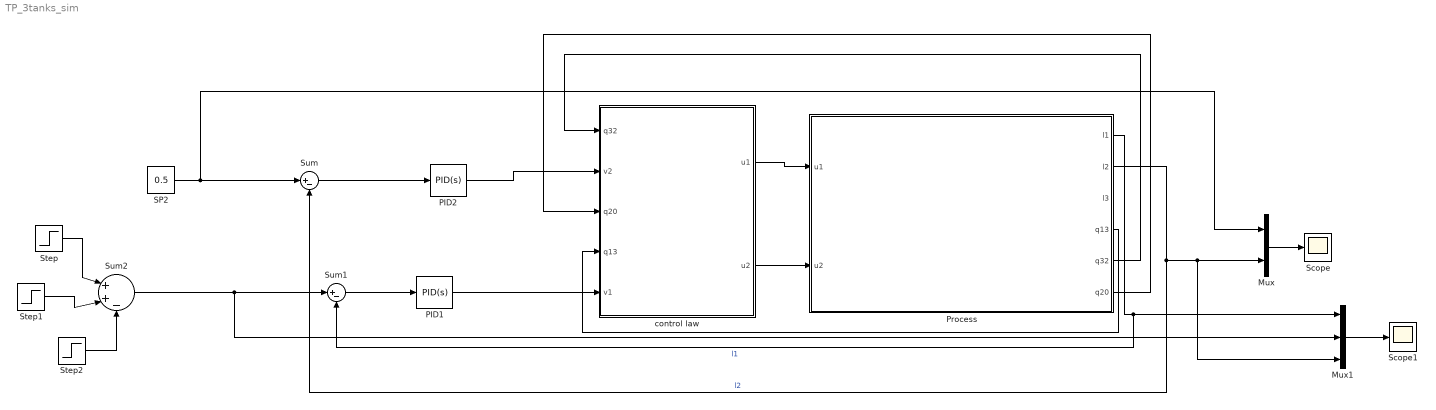
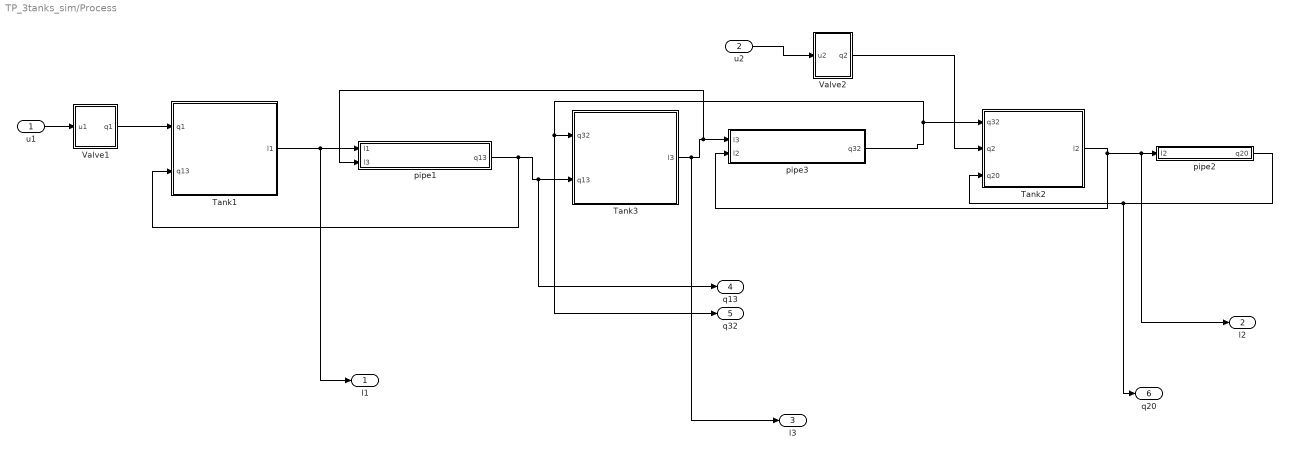
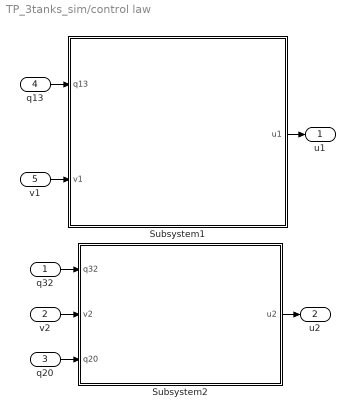
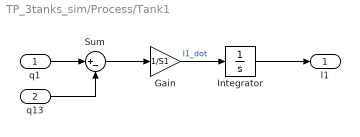
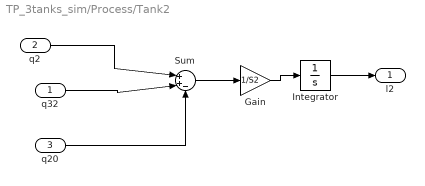
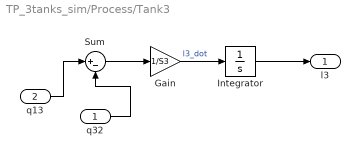
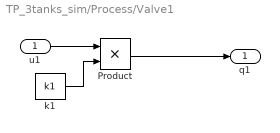
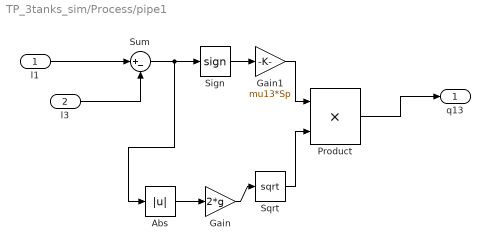
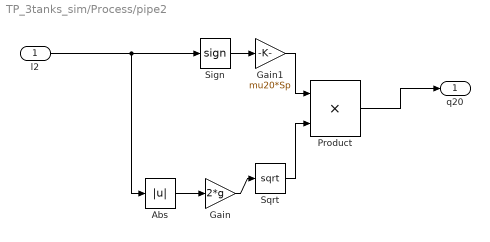
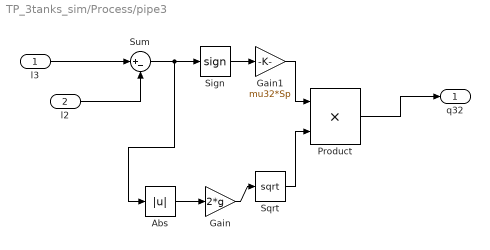
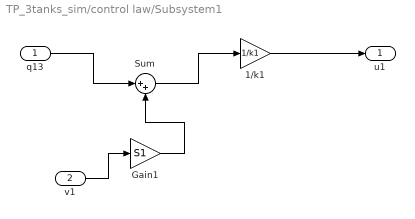
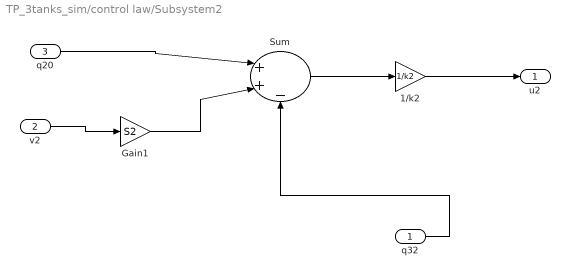
== system TP_3tanks_sim/Process/Valve2 ==
  u2 : Inport
  Product : Product
  k2 : Constant  Value=k2
  q2 : Outport
  wires:
  k2/1 -> Product/2
  u2/1 -> Product/1
  Product/1 -> q2/1

/*
 * TP_3tanks_sim.cpp
 *
 * Trial License - for use to evaluate programs for possible purchase as
 * an end-user only.
 *
 * Code generation for model "TP_3tanks_sim".
 *
 * Model version              : 1.19
 * Simulink Coder version : 24.2 (R2024b) 21-Jun-2024
 * C++ source code generated on : Fri Mar 29 11:18:57 2024
 *
 * Target selection: ert.tlc
 * Note: GRT includes extra infrastructure and instrumentation for prototyping
 * Embedded hardware selection: Intel->x86-64 (Linux 64)
 * Code generation objectives: Unspecified
 * Validation result: Not run
 */

#include "TP_3tanks_sim.h"
#include "rtwtypes.h"

extern "C"
{

#include "rt_nonfinite.h"

}

#include <math.h>
#include "TP_3tanks_sim_private.h"

/*
 * This function updates continuous states using the ODE3 fixed-step
 * solver algorithm
 */
void TP_3tanks_sim::rt_ertODEUpdateContinuousStates(RTWSolverInfo *si )
{
  /* Solver Matrices */
  static const real_T rt_ODE3_A[3] = {
    1.0/2.0, 3.0/4.0, 1.0
  };

  static const real_T rt_ODE3_B[3][3] = {
    { 1.0/2.0, 0.0, 0.0 },

    { 0.0, 3.0/4.0, 0.0 },

    { 2.0/9.0, 1.0/3.0, 4.0/9.0 }
  };

  time_T t = rtsiGetT(si);
  time_T tnew = rtsiGetSolverStopTime(si);
  time_T h = rtsiGetStepSize(si);
  real_T *x = rtsiGetContStates(si);
  ODE3_IntgData *id = static_cast<ODE3_IntgData *>(rtsiGetSolverData(si));
  real_T *y = id->y;
  real_T *f0 = id->f[0];
  real_T *f1 = id->f[1];
  real_T *f2 = id->f[2];
  real_T hB[3];
  int_T i;
  int_T nXc = 7;
  rtsiSetSimTimeStep(si,MINOR_TIME_STEP);

  /* Save the state values at time t in y, we'll use x as ynew. */
  (void) memcpy(y, x,
                static_cast<uint_T>(nXc)*sizeof(real_T));

  /* Assumes that rtsiSetT and ModelOutputs are up-to-date */
  /* f0 = f(t,y) */
  rtsiSetdX(si, f0);
  TP_3tanks_sim_derivatives();

  /* f(:,2) = feval(odefile, t + hA(1), y + f*hB(:,1), args(:)(*)); */
  hB[0] = h * rt_ODE3_B[0][0];
  for (i = 0; i < nXc; i++) {
    x[i] = y[i] + (f0[i]*hB[0]);
  }

  rtsiSetT(si, t + h*rt_ODE3_A[0]);
  rtsiSetdX(si, f1);
  this->step();
  TP_3tanks_sim_derivatives();

  /* f(:,3) = feval(odefile, t + hA(2), y + f*hB(:,2), args(:)(*)); */
  for (i = 0; i <= 1; i++) {
    hB[i] = h * rt_ODE3_B[1][i];
  }

  for (i = 0; i < nXc; i++) {
    x[i] = y[i] + (f0[i]*hB[0] + f1[i]*hB[1]);
  }

  rtsiSetT(si, t + h*rt_ODE3_A[1]);
  rtsiSetdX(si, f2);
  this->step();
  TP_3tanks_sim_derivatives();

  /* tnew = t + hA(3);
     ynew = y + f*hB(:,3); */
  for (i = 0; i <= 2; i++) {
    hB[i] = h * rt_ODE3_B[2][i];
  }

  for (i = 0; i < nXc; i++) {
    x[i] = y[i] + (f0[i]*hB[0] + f1[i]*hB[1] + f2[i]*hB[2]);
  }

  rtsiSetT(si, tnew);
  rtsiSetSimTimeStep(si,MAJOR_TIME_STEP);
}

/* Model step function */
void TP_3tanks_sim::step()
{
  real_T Sum2_tmp;
  real_T rtb_Filter;
  real_T rtb_Step1;
  real_T tmp_0;
  boolean_T tmp;
  if (rtmIsMajorTimeStep((&TP_3tanks_sim_M))) {
    /* set solver stop time */
    if (!((&TP_3tanks_sim_M)->Timing.clockTick0+1)) {
      rtsiSetSolverStopTime(&(&TP_3tanks_sim_M)->solverInfo, (((&TP_3tanks_sim_M)
        ->Timing.clockTickH0 + 1) * (&TP_3tanks_sim_M)->Timing.stepSize0 *
        4294967296.0));
    } else {
      rtsiSetSolverStopTime(&(&TP_3tanks_sim_M)->solverInfo, (((&TP_3tanks_sim_M)
        ->Timing.clockTick0 + 1) * (&TP_3tanks_sim_M)->Timing.stepSize0 +
        (&TP_3tanks_sim_M)->Timing.clockTickH0 * (&TP_3tanks_sim_M)
        ->Timing.stepSize0 * 4294967296.0));
    }
  }                                    /* end MajorTimeStep */

  /* Update absolute time of base rate at minor time step */
  if (rtmIsMinorTimeStep((&TP_3tanks_sim_M))) {
    (&TP_3tanks_sim_M)->Timing.t[0] = rtsiGetT(&(&TP_3tanks_sim_M)->solverInfo);
  }

  /* Integrator: '<S110>/Integrator' */
  TP_3tanks_sim_B.Integrator = TP_3tanks_sim_X.Integrator_CSTATE;
  tmp = rtmIsMajorTimeStep((&TP_3tanks_sim_M));
  if (tmp) {
  }

  /* Sum: '<Root>/Sum' incorporates:
   *  Constant: '<Root>/SP2'
   */
  TP_3tanks_sim_B.Sum = 0.5 - TP_3tanks_sim_B.Integrator;

  /* Gain: '<S94>/Filter Coefficient' incorporates:
   *  Gain: '<S84>/Derivative Gain'
   *  Integrator: '<S86>/Filter'
   *  Sum: '<S86>/SumD'
   */
  TP_3tanks_sim_B.FilterCoefficient = (0.0 * TP_3tanks_sim_B.Sum -
    TP_3tanks_sim_X.Filter_CSTATE) * 100.0;

  /* Signum: '<S115>/Sign' */
  if (rtIsNaN(TP_3tanks_sim_B.Integrator)) {
    tmp_0 = (rtNaN);
  } else if (TP_3tanks_sim_B.Integrator < 0.0) {
    tmp_0 = -1.0;
  } else {
    tmp_0 = (TP_3tanks_sim_B.Integrator > 0.0);
  }

  /* Product: '<S115>/Product' incorporates:
   *  Abs: '<S115>/Abs'
   *  Gain: '<S115>/Gain'
   *  Gain: '<S115>/Gain1'
   *  Signum: '<S115>/Sign'
   *  Sqrt: '<S115>/Sqrt'
   */
  rtb_Step1 = 0.001284 * tmp_0 * sqrt(19.64 * fabs(TP_3tanks_sim_B.Integrator));

  /* Sum: '<S116>/Sum' incorporates:
   *  Integrator: '<S111>/Integrator'
   */
  rtb_Filter = TP_3tanks_sim_X.Integrator_CSTATE_h - TP_3tanks_sim_B.Integrator;

  /* Signum: '<S116>/Sign' */
  if (rtIsNaN(rtb_Filter)) {
    tmp_0 = (rtNaN);
  } else if (rtb_Filter < 0.0) {
    tmp_0 = -1.0;
  } else {
    tmp_0 = (rtb_Filter > 0.0);
  }

  /* Product: '<S116>/Product' incorporates:
   *  Abs: '<S116>/Abs'
   *  Gain: '<S116>/Gain'
   *  Gain: '<S116>/Gain1'
   *  Signum: '<S116>/Sign'
   *  Sqrt: '<S116>/Sqrt'
   */
  rtb_Filter = 0.001284 * tmp_0 * sqrt(19.64 * fabs(rtb_Filter));

  /* Gain: '<S110>/Gain' incorporates:
   *  Constant: '<S113>/k2'
   *  Gain: '<S118>/1//k2'
   *  Gain: '<S118>/Gain1'
   *  Integrator: '<S91>/Integrator'
   *  Product: '<S113>/Product'
   *  Sum: '<S100>/Sum'
   *  Sum: '<S110>/Sum'
   *  Sum: '<S118>/Sum'
   */
  TP_3tanks_sim_B.Gain = ((((((TP_3tanks_sim_B.Sum +
    TP_3tanks_sim_X.Integrator_CSTATE_p) + TP_3tanks_sim_B.FilterCoefficient) *
    0.037 + rtb_Step1) - rtb_Filter) * 4.166666666666667 * 0.24 + rtb_Filter) -
    rtb_Step1) * 27.027027027027028;

  /* Integrator: '<S109>/Integrator' */
  TP_3tanks_sim_B.Integrator_o = TP_3tanks_sim_X.Integrator_CSTATE_a;

  /* Sum: '<S114>/Sum' incorporates:
   *  Integrator: '<S111>/Integrator'
   */
  rtb_Step1 = TP_3tanks_sim_B.Integrator_o - TP_3tanks_sim_X.Integrator_CSTATE_h;

  /* Signum: '<S114>/Sign' */
  if (rtIsNaN(rtb_Step1)) {
    tmp_0 = (rtNaN);
  } else if (rtb_Step1 < 0.0) {
    tmp_0 = -1.0;
  } else {
    tmp_0 = (rtb_Step1 > 0.0);
  }

  /* Product: '<S114>/Product' incorporates:
   *  Abs: '<S114>/Abs'
   *  Gain: '<S114>/Gain'
   *  Gain: '<S114>/Gain1'
   *  Signum: '<S114>/Sign'
   *  Sqrt: '<S114>/Sqrt'
   */
  rtb_Step1 = 0.001284 * tmp_0 * sqrt(19.64 * fabs(rtb_Step1));

  /* Gain: '<S111>/Gain' incorporates:
   *  Sum: '<S111>/Sum'
   */
  TP_3tanks_sim_B.l3_dot = (rtb_Step1 - rtb_Filter) * 20.408163265306122;

  /* Step: '<Root>/Step' incorporates:
   *  Step: '<Root>/Step1'
   *  Step: '<Root>/Step2'
   */
  Sum2_tmp = (&TP_3tanks_sim_M)->Timing.t[0];
  if (Sum2_tmp < 30.0) {
    tmp_0 = 0.0;
  } else {
    tmp_0 = 0.4;
  }

  /* Step: '<Root>/Step1' */
  if (Sum2_tmp < 60.0) {
    rtb_Filter = 0.0;
  } else {
    rtb_Filter = 0.3;
  }

  /* Step: '<Root>/Step2' */
  if (Sum2_tmp < 90.0) {
    Sum2_tmp = 0.0;
  } else {
    Sum2_tmp = 0.45;
  }

  /* Sum: '<Root>/Sum2' incorporates:
   *  Step: '<Root>/Step'
   *  Step: '<Root>/Step1'
   *  Step: '<Root>/Step2'
   */
  TP_3tanks_sim_B.Sum2 = (tmp_0 + rtb_Filter) - Sum2_tmp;

  /* Sum: '<Root>/Sum1' */
  TP_3tanks_sim_B.Sum1 = TP_3tanks_sim_B.Sum2 - TP_3tanks_sim_B.Integrator_o;

  /* Gain: '<S42>/Filter Coefficient' incorporates:
   *  Gain: '<S32>/Derivative Gain'
   *  Integrator: '<S34>/Filter'
   *  Sum: '<S34>/SumD'
   */
  TP_3tanks_sim_B.FilterCoefficient_j = (0.0 * TP_3tanks_sim_B.Sum1 -
    TP_3tanks_sim_X.Filter_CSTATE_p) * 100.0;

  /* Gain: '<S109>/Gain' incorporates:
   *  Constant: '<S112>/k1'
   *  Gain: '<S117>/1//k1'
   *  Gain: '<S117>/Gain1'
   *  Integrator: '<S39>/Integrator'
   *  Product: '<S112>/Product'
   *  Sum: '<S109>/Sum'
   *  Sum: '<S117>/Sum'
   *  Sum: '<S48>/Sum'
   */
  TP_3tanks_sim_B.l1_dot = ((((TP_3tanks_sim_B.Sum1 +
    TP_3tanks_sim_X.Integrator_CSTATE_l) + TP_3tanks_sim_B.FilterCoefficient_j) *
    0.04 + rtb_Step1) * 3.125 * 0.32 - rtb_Step1) * 25.0;
  if (tmp) {
  }

  if (rtmIsMajorTimeStep((&TP_3tanks_sim_M))) {
    rt_ertODEUpdateContinuousStates(&(&TP_3tanks_sim_M)->solverInfo);

    /* Update absolute time for base rate */
    /* The "clockTick0" counts the number of times the code of this task has
     * been executed. The absolute time is the multiplication of "clockTick0"
     * and "Timing.stepSize0". Size of "clockTick0" ensures timer will not
     * overflow during the application lifespan selected.
     * Timer of this task consists of two 32 bit unsigned integers.
     * The two integers represent the low bits Timing.clockTick0 and the high bits
     * Timing.clockTickH0. When the low bit overflows to 0, the high bits increment.
     */
    if (!(++(&TP_3tanks_sim_M)->Timing.clockTick0)) {
      ++(&TP_3tanks_sim_M)->Timing.clockTickH0;
    }

    (&TP_3tanks_sim_M)->Timing.t[0] = rtsiGetSolverStopTime(&(&TP_3tanks_sim_M
      )->solverInfo);

    {
      /* Update absolute timer for sample time: [2.0s, 0.0s] */
      /* The "clockTick1" counts the number of times the code of this task has
       * been executed. The resolution of this integer timer is 2.0, which is the step size
       * of the task. Size of "clockTick1" ensures timer will not overflow during the
       * application lifespan selected.
       * Timer of this task consists of two 32 bit unsigned integers.
       * The two integers represent the low bits Timing.clockTick1 and the high bits
       * Timing.clockTickH1. When the low bit overflows to 0, the high bits increment.
       */
      (&TP_3tanks_sim_M)->Timing.clockTick1++;
      if (!(&TP_3tanks_sim_M)->Timing.clockTick1) {
        (&TP_3tanks_sim_M)->Timing.clockTickH1++;
      }
    }
  }                                    /* end MajorTimeStep */
}
